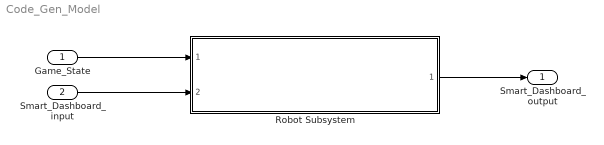
/*
 * Sponsored License - for use in support of a program or activity
 * sponsored by MathWorks.  Not for government, commercial or other
 * non-sponsored organizational use.
 *
 * File: Code_Gen_Model.c
 *
 * Code generated for Simulink model 'Code_Gen_Model'.
 *
 * Model version                  : 1.6
 * Simulink Coder version         : 23.2 (R2023b) 01-Aug-2023
 * C/C++ source code generated on : Sat Dec 16 20:41:34 2023
 *
 * Target selection: ert.tlc
 * Embedded hardware selection: Intel->x86-64 (Windows64)
 * Code generation objectives: Unspecified
 * Validation result: Not run
 */

#include "Code_Gen_Model.h"
#include <math.h>
#include "rt_nonfinite.h"
#include "Code_Gen_Model_private.h"
#include "rtwtypes.h"
#include <float.h>

/* Exported block parameters */
real_T Frequency = 0.25;               /* Variable: Frequency
                                        * Referenced by:
                                        *   '<S2>/Constant1'
                                        *   '<S4>/Constant1'
                                        *   '<S5>/Constant1'
                                        */
real_T Offset = 0.0;                   /* Variable: Offset
                                        * Referenced by:
                                        *   '<S2>/Constant3'
                                        *   '<S3>/Constant3'
                                        *   '<S4>/Constant3'
                                        *   '<S5>/Constant3'
                                        */

/* Block signals (default storage) */
B_Code_Gen_Model_T Code_Gen_Model_B;

/* Block states (default storage) */
DW_Code_Gen_Model_T Code_Gen_Model_DW;

/* External inputs (root inport signals with default storage) */
ExtU_Code_Gen_Model_T Code_Gen_Model_U;

/* External outputs (root outports fed by signals with default storage) */
ExtY_Code_Gen_Model_T Code_Gen_Model_Y;

/* Real-time model */
static RT_MODEL_Code_Gen_Model_T Code_Gen_Model_M_;
RT_MODEL_Code_Gen_Model_T *const Code_Gen_Model_M = &Code_Gen_Model_M_;
real_T rt_modd_snf(real_T u0, real_T u1)
{
  real_T y;
  y = u0;
  if (u1 == 0.0) {
    if (u0 == 0.0) {
      y = u1;
    }
  } else if (rtIsNaN(u0) || rtIsNaN(u1) || rtIsInf(u0)) {
    y = (rtNaN);
  } else if (u0 == 0.0) {
    y = 0.0 / u1;
  } else if (rtIsInf(u1)) {
    if ((u1 < 0.0) != (u0 < 0.0)) {
      y = u1;
    }
  } else {
    boolean_T yEq;
    y = fmod(u0, u1);
    yEq = (y == 0.0);
    if ((!yEq) && (u1 > floor(u1))) {
      real_T q;
      q = fabs(u0 / u1);
      yEq = !(fabs(q - floor(q + 0.5)) > DBL_EPSILON * q);
    }

    if (yEq) {
      y = u1 * 0.0;
    } else if ((u0 < 0.0) != (u1 < 0.0)) {
      y += u1;
    }
  }

  return y;
}

/* Model step function */
void Code_Gen_Model_step(void)
{
  real_T rtb_Divide;
  int32_T tmp;
  int8_T rtPrevAction;

  /* SwitchCase: '<S1>/Switch Case' incorporates:
   *  Inport: '<Root>/Game_State'
   */
  rtPrevAction = Code_Gen_Model_DW.SwitchCase_ActiveSubsystem;
  Code_Gen_Model_DW.SwitchCase_ActiveSubsystem = -1;
  rtb_Divide = trunc(Code_Gen_Model_U.Game_State);
  if (rtIsNaN(rtb_Divide) || rtIsInf(rtb_Divide)) {
    rtb_Divide = 0.0;
  } else {
    rtb_Divide = fmod(rtb_Divide, 4.294967296E+9);
  }

  if (rtb_Divide < 0.0) {
    tmp = -(int32_T)(uint32_T)-rtb_Divide;
  } else {
    tmp = (int32_T)(uint32_T)rtb_Divide;
  }

  switch (tmp) {
   case 0:
    Code_Gen_Model_DW.SwitchCase_ActiveSubsystem = 0;
    break;

   case 1:
    Code_Gen_Model_DW.SwitchCase_ActiveSubsystem = 1;
    break;

   case 2:
    Code_Gen_Model_DW.SwitchCase_ActiveSubsystem = 2;
    break;

   case 3:
    Code_Gen_Model_DW.SwitchCase_ActiveSubsystem = 3;
    break;
  }

  switch (Code_Gen_Model_DW.SwitchCase_ActiveSubsystem) {
   case 0:
    /* Outputs for IfAction SubSystem: '<S1>/Disabled' incorporates:
     *  ActionPort: '<S3>/Action Port'
     */
    /* Merge: '<S1>/Merge' incorporates:
     *  Constant: '<S3>/Constant3'
     *  Inport: '<Root>/Smart_Dashboard_input'
     *  Sum: '<S3>/Add'
     */
    Code_Gen_Model_B.Merge = Offset + Code_Gen_Model_U.Smart_Dashboard_input;

    /* End of Outputs for SubSystem: '<S1>/Disabled' */
    break;

   case 1:
    if (Code_Gen_Model_DW.SwitchCase_ActiveSubsystem != rtPrevAction) {
      /* InitializeConditions for IfAction SubSystem: '<S1>/Autonomous' incorporates:
       *  ActionPort: '<S2>/Action Port'
       */
      /* InitializeConditions for SwitchCase: '<S1>/Switch Case' incorporates:
       *  UnitDelay: '<S2>/Unit Delay'
       */
      Code_Gen_Model_DW.UnitDelay_DSTATE_c = 0.0;

      /* End of InitializeConditions for SubSystem: '<S1>/Autonomous' */
    }

    /* Outputs for IfAction SubSystem: '<S1>/Autonomous' incorporates:
     *  ActionPort: '<S2>/Action Port'
     */
    /* Sum: '<S2>/Sum' incorporates:
     *  Constant: '<S2>/Constant'
     *  UnitDelay: '<S2>/Unit Delay'
     */
    Code_Gen_Model_DW.UnitDelay_DSTATE_c += 0.02;

    /* Trigonometry: '<S2>/Sin' incorporates:
     *  Constant: '<S2>/Constant1'
     *  Gain: '<S2>/Gain'
     *  Product: '<S2>/Product'
     *  UnitDelay: '<S2>/Unit Delay'
     */
    Code_Gen_Model_B.sine_wave_raw = sin(6.2831853071795862 * Frequency *
      Code_Gen_Model_DW.UnitDelay_DSTATE_c);

    /* Merge: '<S1>/Merge' incorporates:
     *  Constant: '<S2>/Constant3'
     *  Inport: '<Root>/Smart_Dashboard_input'
     *  Product: '<S2>/Product1'
     *  Sum: '<S2>/Add'
     */
    Code_Gen_Model_B.Merge = Code_Gen_Model_U.Smart_Dashboard_input *
      Code_Gen_Model_B.sine_wave_raw + Offset;

    /* End of Outputs for SubSystem: '<S1>/Autonomous' */
    break;

   case 2:
    if (Code_Gen_Model_DW.SwitchCase_ActiveSubsystem != rtPrevAction) {
      /* InitializeConditions for IfAction SubSystem: '<S1>/TeleOp' incorporates:
       *  ActionPort: '<S4>/Action Port'
       */
      /* InitializeConditions for SwitchCase: '<S1>/Switch Case' incorporates:
       *  UnitDelay: '<S4>/Unit Delay'
       */
      Code_Gen_Model_DW.UnitDelay_DSTATE_d = 0.0;

      /* End of InitializeConditions for SubSystem: '<S1>/TeleOp' */
    }

    /* Outputs for IfAction SubSystem: '<S1>/TeleOp' incorporates:
     *  ActionPort: '<S4>/Action Port'
     */
    /* Product: '<S4>/Divide' incorporates:
     *  Constant: '<S4>/Constant1'
     */
    rtb_Divide = 1.0 / Frequency;

    /* Sum: '<S4>/Sum' incorporates:
     *  Constant: '<S4>/Constant'
     *  UnitDelay: '<S4>/Unit Delay'
     */
    Code_Gen_Model_DW.UnitDelay_DSTATE_d += 0.02;

    /* Merge: '<S1>/Merge' incorporates:
     *  Constant: '<S4>/Constant3'
     *  Inport: '<Root>/Smart_Dashboard_input'
     *  Math: '<S4>/Mod'
     *  Product: '<S4>/Product1'
     *  Sum: '<S4>/Add'
     *  UnitDelay: '<S4>/Unit Delay'
     */
    Code_Gen_Model_B.Merge = Code_Gen_Model_U.Smart_Dashboard_input *
      rt_modd_snf(Code_Gen_Model_DW.UnitDelay_DSTATE_d, rtb_Divide) / rtb_Divide
      + Offset;

    /* End of Outputs for SubSystem: '<S1>/TeleOp' */
    break;

   case 3:
    if (Code_Gen_Model_DW.SwitchCase_ActiveSubsystem != rtPrevAction) {
      /* InitializeConditions for IfAction SubSystem: '<S1>/Test' incorporates:
       *  ActionPort: '<S5>/Action Port'
       */
      /* InitializeConditions for SwitchCase: '<S1>/Switch Case' incorporates:
       *  UnitDelay: '<S5>/Unit Delay'
       */
      Code_Gen_Model_DW.UnitDelay_DSTATE = 0.0;

      /* End of InitializeConditions for SubSystem: '<S1>/Test' */
    }

    /* Outputs for IfAction SubSystem: '<S1>/Test' incorporates:
     *  ActionPort: '<S5>/Action Port'
     */
    /* Sum: '<S5>/Sum' incorporates:
     *  Constant: '<S5>/Constant'
     *  UnitDelay: '<S5>/Unit Delay'
     */
    Code_Gen_Model_DW.UnitDelay_DSTATE += 0.02;

    /* Product: '<S5>/Divide' incorporates:
     *  Constant: '<S5>/Constant1'
     */
    rtb_Divide = 1.0 / Frequency;

    /* Switch: '<S5>/Switch' incorporates:
     *  Gain: '<S5>/Gain'
     *  Inport: '<Root>/Smart_Dashboard_input'
     *  Math: '<S5>/Mod'
     *  RelationalOperator: '<S5>/Relational Operator'
     *  UnaryMinus: '<S5>/Unary Minus'
     *  UnitDelay: '<S5>/Unit Delay'
     */
    if (rt_modd_snf(Code_Gen_Model_DW.UnitDelay_DSTATE, rtb_Divide) >= 0.5 *
        rtb_Divide) {
      rtb_Divide = Code_Gen_Model_U.Smart_Dashboard_input;
    } else {
      rtb_Divide = -Code_Gen_Model_U.Smart_Dashboard_input;
    }

    /* Merge: '<S1>/Merge' incorporates:
     *  Constant: '<S5>/Constant3'
     *  Sum: '<S5>/Add'
     *  Switch: '<S5>/Switch'
     */
    Code_Gen_Model_B.Merge = Offset + rtb_Divide;

    /* End of Outputs for SubSystem: '<S1>/Test' */
    break;
  }

  /* End of SwitchCase: '<S1>/Switch Case' */

  /* Outport: '<Root>/Smart_Dashboard_output' */
  Code_Gen_Model_Y.Smart_Dashboard_output = Code_Gen_Model_B.Merge;
}
